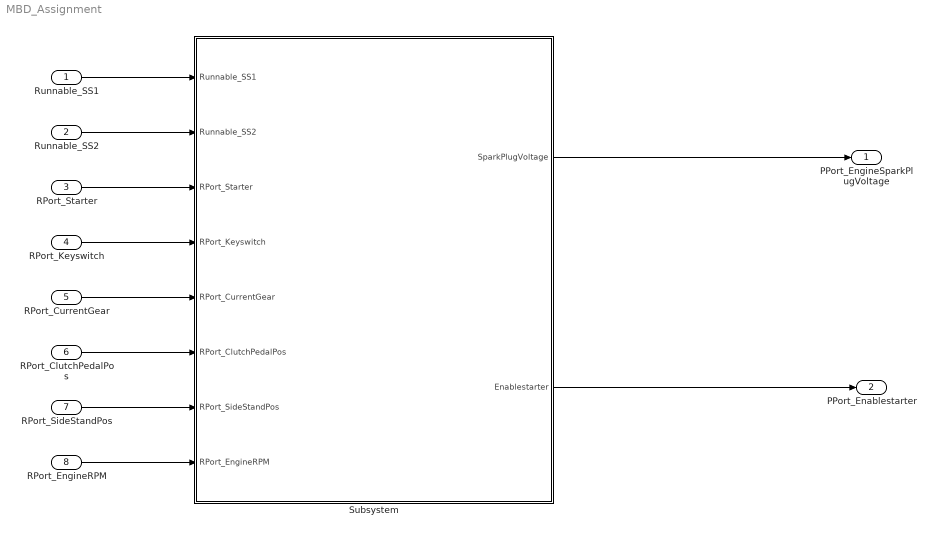
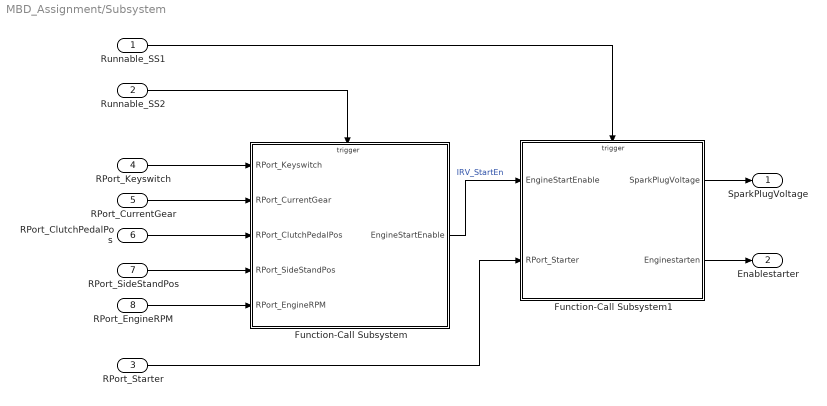
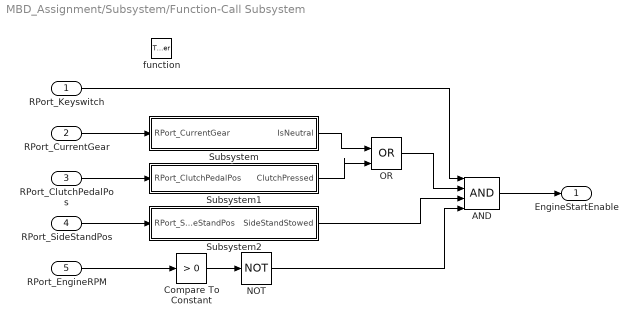
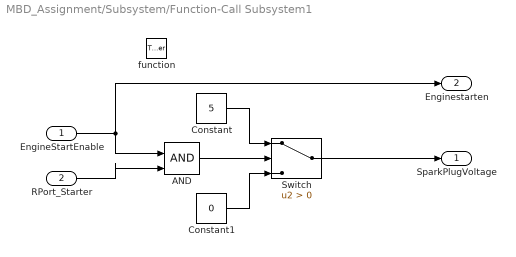
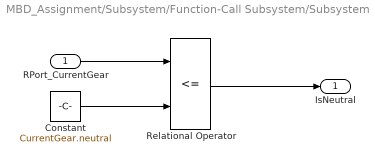
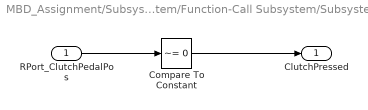
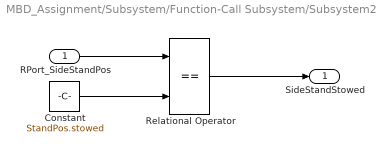
/*
 * Academic License - for use in teaching, academic research, and meeting
 * course requirements at degree granting institutions only.  Not for
 * government, commercial, or other organizational use.
 *
 * File: MBD_Assignment.c
 *
 * Code generated for Simulink model 'MBD_Assignment'.
 *
 * Model version                  : 1.30
 * Simulink Coder version         : 9.8 (R2022b) 13-May-2022
 * C/C++ source code generated on : Thu Jul 13 12:47:04 2023
 *
 * Target selection: autosar.tlc
 * Embedded hardware selection: Intel->x86-64 (Windows64)
 * Code generation objectives: Unspecified
 * Validation result: Not run
 */

#include "MBD_Assignment.h"
#include "rtwtypes.h"
#include "Rte_Type.h"

/* Model step function for TID1 */
void ignition(void)                    /* Explicit Task: Runnable_SS1 */
{
  sint32 tmp;
  boolean rtb_IRV_StartEn;

  /* DataTransferBlock generated from: '<S1>/Function-Call Subsystem' */
  rtb_IRV_StartEn = Rte_IrvIRead_ignition_startenable();

  /* RootInportFunctionCallGenerator generated from: '<Root>/Runnable_SS1' incorporates:
   *  SubSystem: '<S1>/Function-Call Subsystem1'
   */
  /* Switch: '<S3>/Switch' incorporates:
   *  Constant: '<S3>/Constant'
   *  Constant: '<S3>/Constant1'
   *  Inport: '<Root>/RPort_Starter'
   *  Logic: '<S3>/AND'
   *  SignalConversion generated from: '<S3>/EngineStartEnable'
   */
  if (rtb_IRV_StartEn && Rte_IRead_ignition_userinputs_DataElement1()) {
    tmp = 5;
  } else {
    tmp = 0;
  }

  /* Outport: '<Root>/PPort_EngineSparkPlugVoltage' incorporates:
   *  Switch: '<S3>/Switch'
   */
  Rte_IWrite_ignition_outputdata_DataElement1(tmp);

  /* Outport: '<Root>/PPort_Enablestarter' incorporates:
   *  SignalConversion generated from: '<S3>/EngineStartEnable'
   */
  Rte_IWrite_ignition_outputdata_DataElement2(rtb_IRV_StartEn);

  /* End of Outputs for RootInportFunctionCallGenerator generated from: '<Root>/Runnable_SS1' */
}
